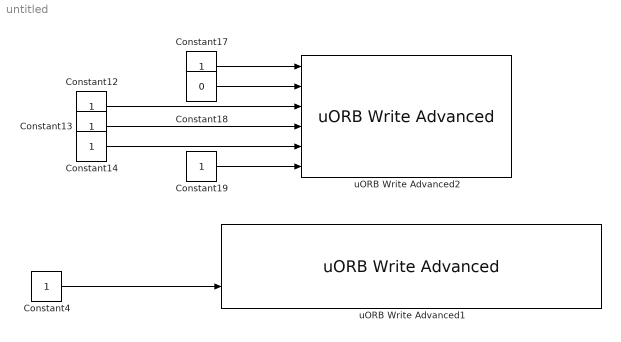
/*
 * File: untitled.c
 *
 * Code generated for Simulink model 'untitled'.
 *
 * Model version                  : 1.39
 * Simulink Coder version         : 8.14 (R2018a) 06-Feb-2018
 * C/C++ source code generated on : Wed Nov 18 11:54:47 2020
 *
 * Target selection: ert.tlc
 * Embedded hardware selection: ARM Compatible->ARM Cortex
 * Code generation objectives: Unspecified
 * Validation result: Not run
 */

#include "untitled.h"
#include "untitled_private.h"

/* Block states (default storage) */
DW_untitled_T untitled_DW;

/* Real-time model */
RT_MODEL_untitled_T untitled_M_;
RT_MODEL_untitled_T *const untitled_M = &untitled_M_;

/* Model step function */
void untitled_step(void)
{
  /* S-Function (sfun_px4_uorb_write): '<Root>/uORB Write Advanced2' incorporates:
   *  Constant: '<Root>/Constant12'
   *  Constant: '<Root>/Constant13'
   *  Constant: '<Root>/Constant14'
   *  Constant: '<Root>/Constant17'
   *  Constant: '<Root>/Constant18'
   *  Constant: '<Root>/Constant19'
   */
  {
    //struct position_setpoint_s InputStruct;
    //memset( &InputStruct, 0, sizeof(InputStruct));

    /* assign input parameters to struct */
    untitled_DW.uORBWriteAdvanced2_uorb_msg.valid = true;
    untitled_DW.uORBWriteAdvanced2_uorb_msg.type = ((uint8_T)0U);
    untitled_DW.uORBWriteAdvanced2_uorb_msg.x = 1.0F;
    untitled_DW.uORBWriteAdvanced2_uorb_msg.y = 1.0F;
    untitled_DW.uORBWriteAdvanced2_uorb_msg.z = 1.0F;
    untitled_DW.uORBWriteAdvanced2_uorb_msg.position_valid = true;

    /* Publish data for subscribers */
    orb_publish(ORB_ID(position_setpoint),
                untitled_DW.uORBWriteAdvanced2_uorb_advert,
                &untitled_DW.uORBWriteAdvanced2_uorb_msg);
  }
}
